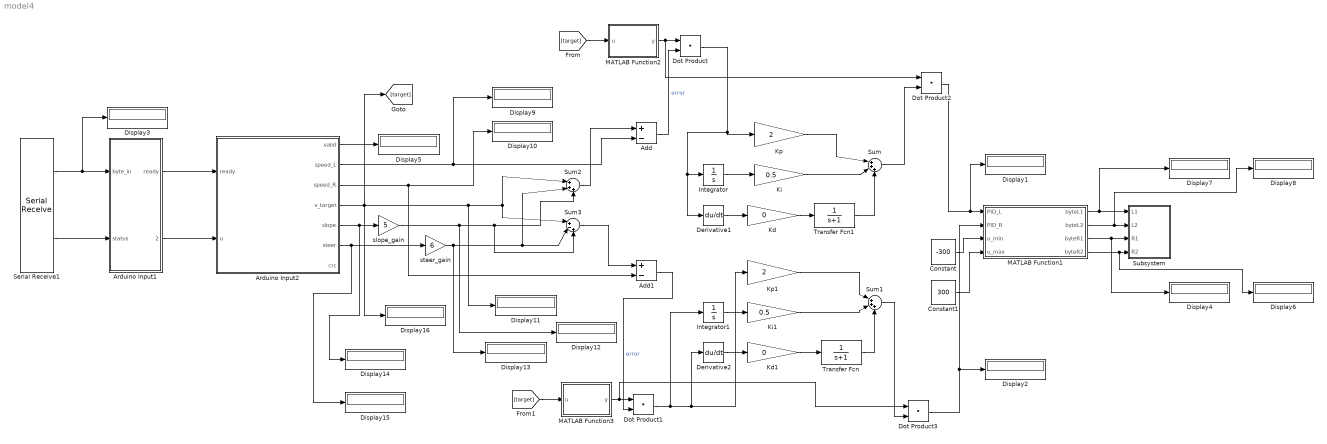
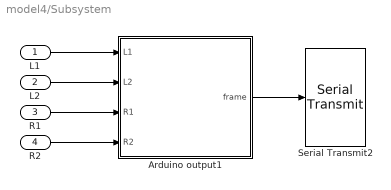
== matlab function model4/MATLAB Function1 ==
function [byteL1, byteL2, byteR1, byteR2] = encode_pwm_duty(PID_L, PID_R, u_min, u_max)
%#codegen

% [-1000, 1000] 범위로 선형 매핑
scale = 1000 / (u_max - u_min);
dutyL = int16(round((PID_L - u_min) * scale - 500));
dutyR = int16(round((PID_R - u_min) * scale - 500));

% uint16로 안전 변환 (비트 연산 위해)
dutyL_u = uint16(typecast(dutyL, 'uint16'));
dutyL_u = dutyL_u(1);
dutyR_u = uint16(typecast(dutyR, 'uint16'));
dutyR_u = dutyR_u(1);
% MSB / LSB 분리
byteL1 = uint8(bitshift(dutyL_u, -8));  % MSB
byteL2 = uint8(bitand(dutyL_u, 255));   % LSB

byteR1 = uint8(bitshift(dutyR_u, -8));
byteR2 = uint8(bitand(dutyR_u, 255));

% function [byteL1, byteL2, byteR1, byteR2] = encode_pwm_duty(PID_L, PID_R, u_min, u_max)
% % PID_L, PID_R : PID 제어기 출력값 (실수형)
% % u_min, u_max : PID 출력 예상 범위 (예: -4050 ~ +4050)
% 
% % 매핑 대상 범위
% min_duty = -1000;
% max_duty = 1000;
% 
% %% 매핑 함수 정의
% map_to_range = @(u) ((u - u_min) / (u_max - u_min)) * (max_duty - min_duty) + min_duty;
% 
% % 매핑 수행
% dutyL = int16(round(map_to_range(PID_L)));  % 정수로 변환
% dutyR = int16(round(map_to_range(PID_R)));
% 
% % MSB/LSB 분리
% byteL2 = bitand(dutyL, 255);         % LSB
% byteL1 = bitshift(dutyL, -8);        % MSB
% 
% byteR2 = bitand(dutyR, 255);
% byteR1 = bitshift(dutyR, -8);

== matlab function model4/MATLAB Function2 ==
function y = fcn(u)

if u<1 && u > -1
    y=0;
else
    y=1;
end

== matlab function model4/Arduino Input2 ==
function [valid, speed_L, speed_R, v_target, slope, steer, crc] =  Arduino_Input2( ready, u)
% UART 패킷 파서 (persistent 방식으로 이전 값 유지)
% u: [10x1] uint8, 패킷 데이터
% ready: 패킷 유효 신호

%#codegen

% 이전 출력값 저장용 persistent 변수
persistent p_valid p_speed_L p_speed_R p_v_target p_slope p_steer p_crc
 
% 초기화 (최초 실행 시)
if isempty(p_valid)
    p_valid = false;
    p_speed_L = 0.0;
    p_speed_R = 0.0;
    p_v_target = uint16(0);
    p_slope = int8(0);
    p_steer = int8(0);
    p_crc = uint8(0);
end

% 새로운 데이터가 들어왔을 경우만 업데이트
if ready == 1
    % data_sum = uint16((2)) + uint16(u(3)) + uint16(u(4)) + uint16(u(5)) + uint16(u(6)) + uint16(u(7)) + uint16(u(8)) + uint16(u(9));
    % if (0xFF & data_sum) == 0
        p_valid = true;
        p_speed_L = (double(u(2)-1) + double(u(3)-1)/100)*10;
        p_speed_R = (double(u(4)-1) + double(u(5)-1)/100)*10;
        if u(7)==1
            u(7)=u(7)-1;
        end
        p_v_target = uint16(u(7)-1)*10;
        tmp = typecast(u(6), 'int8'); tmp = tmp(1);
        if tmp <= int8(30) && tmp >= int8(-30)
            p_slope = tmp;
        end
        tmp = typecast(u(8), 'int8'); tmp = tmp(1);
        if  tmp <= int8(30) && tmp >= int8(-30)
            p_steer = tmp;
        end
        p_crc = u(9);
    % end
end

% 항상 마지막 유효 출력 반환
valid     = p_valid;
speed_L   = p_speed_L;
speed_R   = p_speed_R;
v_target  = p_v_target;
slope     = p_slope;
steer     = p_steer;
crc       = p_crc;

== matlab function model4/Arduino Input1 ==
function [ready, data_out] = uart_parser(byte_in, status)
% UART 프레임 수신기 (Start Byte = 0xAA, Total = 10 bytes)
% 입력: byte_in - 1바이트씩 들어오는 uint8
% 입력: status - Serial Receive의 상태 (1이면 수신 성공)
% 출력: ready - 1이면 패킷 파싱 완료
% 출력: data_out - [1x10] uint8, 패킷 데이터

persistent buffer count collecting

if isempty(buffer)
    buffer = zeros(1, 10, 'uint8');
    count = 0;
    collecting = false;
end

ready = false;
data_out = zeros(1,10,'uint8');

if status == 1
    if ~collecting
        % 아직 수집 시작 전 → start byte 찾기
        if byte_in == hex2dec('AA')
            buffer(1) = byte_in;
            count = 1;
            collecting = true;
        end
    else
        if byte_in == hex2dec('AA')
            count = 1;
        end
        % 수집 중
        count = count + 1;
        buffer(count) = byte_in;

        if count == 10
            data_out = buffer;
            ready = true;
            count = 0;
            collecting = false;
        end
    end
else
    % if count~=0
    %     count = count + 1;
    %     buffer(count) = uint8(0);
    %     if count == 10
    %         data_out = buffer;
    %         ready = true;
    %         count = 0;
    %         collecting = false;
    %     end
    % else
        buffer = zeros(1, 10, 'uint8');
        count = 0;
        collecting = false;
    % end
end

== matlab function model4/MATLAB Function3 ==
function y = fcn(u)

if u<1 && u > -1
    y=0;
else
    y=1;
end

== matlab function model4/Subsystem/Arduino output1 ==
function frame = makeFrame(L1,L2,R1,R2)
% 입력:
%   vL, vR : 좌/우 목표 속도 (실수, cm/s 단위)
% 출력:
%   frame : 7-byte UART 전송 프레임 (uint8 벡터)
    frame = zeros(5,1,'uint8');  % 7바이트 프레임

    % 2-3. 목표속도_L (정수 + 소수)
    frame(1) = uint8(L1);                       % 정수부
    frame(2) = uint8(L2);       % 소수부 (소수점 둘째 자리까지)

    % 4-5. 목표속도_R (정수 + 소수)
    frame(3) = uint8(R1);                       % 정수부
    frame(4) = uint8(R2);       % 소수부

    % 6. CRC: 256 - (sum of byte 1~5) % 256
    crc = mod(sum(double(frame(1:5))), 256);
    frame(5) = uint8(mod(256 - crc, 256));
    
end

/*
 * Academic License - for use in teaching, academic research, and meeting
 * course requirements at degree granting institutions only.  Not for
 * government, commercial, or other organizational use.
 *
 * File: model4.c
 *
 * Code generated for Simulink model 'model4'.
 *
 * Model version                  : 1.173
 * Simulink Coder version         : 24.2 (R2024b) 21-Jun-2024
 * C/C++ source code generated on : Mon May 26 21:13:55 2025
 *
 * Target selection: ert.tlc
 * Embedded hardware selection: Atmel->AVR
 * Code generation objectives: Unspecified
 * Validation result: Not run
 */

#include "model4.h"
#include "rtwtypes.h"
#include "model4_private.h"
#include <math.h>
#include "rt_nonfinite.h"
#include <string.h>
#include <stddef.h>

/* Block signals (default storage) */
B_model4_T model4_B;

/* Continuous states */
X_model4_T model4_X;

/* Disabled State Vector */
XDis_model4_T model4_XDis;

/* Block states (default storage) */
DW_model4_T model4_DW;

/* Real-time model */
static RT_MODEL_model4_T model4_M_;
RT_MODEL_model4_T *const model4_M = &model4_M_;

/* Forward declaration for local functions */
static real_T model4_mod(real_T x);
static void rate_monotonic_scheduler(void);

/*
 * Set which subrates need to run this base step (base rate always runs).
 * This function must be called prior to calling the model step function
 * in order to remember which rates need to run this base step.  The
 * buffering of events allows for overlapping preemption.
 */
void model4_SetEventsForThisBaseStep(boolean_T *eventFlags)
{
  /* Task runs when its counter is zero, computed via rtmStepTask macro */
  eventFlags[2] = ((boolean_T)rtmStepTask(model4_M, 2));
}

/*
 *         This function updates active task flag for each subrate
 *         and rate transition flags for tasks that exchange data.
 *         The function assumes rate-monotonic multitasking scheduler.
 *         The function must be called at model base rate so that
 *         the generated code self-manages all its subrates and rate
 *         transition flags.
 */
static void rate_monotonic_scheduler(void)
{
  /* To ensure a deterministic data transfer between two rates,
   * data is transferred at the priority of a fast task and the frequency
   * of the slow task.  The following flags indicate when the data transfer
   * happens.  That is, a rate interaction flag is set true when both rates
   * will run, and false otherwise.
   */

  /* tid 1 shares data with slower tid rate: 2 */
  if (model4_M->Timing.TaskCounters.TID[1] == 0) {
    model4_M->Timing.RateInteraction.TID1_2 = (model4_M->
      Timing.TaskCounters.TID[2] == 0);
  }

  /* Compute which subrates run during the next base time step.  Subrates
   * are an integer multiple of the base rate counter.  Therefore, the subtask
   * counter is reset when it reaches its limit (zero means run).
   */
  (model4_M->Timing.TaskCounters.TID[2])++;
  if ((model4_M->Timing.TaskCounters.TID[2]) > 99) {/* Sample time: [0.1s, 0.0s] */
    model4_M->Timing.TaskCounters.TID[2] = 0;
  }
}

/*
 * This function updates continuous states using the ODE3 fixed-step
 * solver algorithm
 */
static void rt_ertODEUpdateContinuousStates(RTWSolverInfo *si )
{
  /* Solver Matrices */
  static const real_T rt_ODE3_A[3] = {
    1.0/2.0, 3.0/4.0, 1.0
  };

  static const real_T rt_ODE3_B[3][3] = {
    { 1.0/2.0, 0.0, 0.0 },

    { 0.0, 3.0/4.0, 0.0 },

    { 2.0/9.0, 1.0/3.0, 4.0/9.0 }
  };

  time_T t = rtsiGetT(si);
  time_T tnew = rtsiGetSolverStopTime(si);
  time_T h = rtsiGetStepSize(si);
  real_T *x = rtsiGetContStates(si);
  ODE3_IntgData *id = (ODE3_IntgData *)rtsiGetSolverData(si);
  real_T *y = id->y;
  real_T *f0 = id->f[0];
  real_T *f1 = id->f[1];
  real_T *f2 = id->f[2];
  real_T hB[3];
  int_T i;
  int_T nXc = 4;
  rtsiSetSimTimeStep(si,MINOR_TIME_STEP);

  /* Save the state values at time t in y, we'll use x as ynew. */
  (void) memcpy(y, x,
                (uint_T)nXc*sizeof(real_T));

  /* Assumes that rtsiSetT and ModelOutputs are up-to-date */
  /* f0 = f(t,y) */
  rtsiSetdX(si, f0);
  model4_derivatives();

  /* f(:,2) = feval(odefile, t + hA(1), y + f*hB(:,1), args(:)(*)); */
  hB[0] = h * rt_ODE3_B[0][0];
  for (i = 0; i < nXc; i++) {
    x[i] = y[i] + (f0[i]*hB[0]);
  }

  rtsiSetT(si, t + h*rt_ODE3_A[0]);
  rtsiSetdX(si, f1);
  model4_step0();
  model4_derivatives();

  /* f(:,3) = feval(odefile, t + hA(2), y + f*hB(:,2), args(:)(*)); */
  for (i = 0; i <= 1; i++) {
    hB[i] = h * rt_ODE3_B[1][i];
  }

  for (i = 0; i < nXc; i++) {
    x[i] = y[i] + (f0[i]*hB[0] + f1[i]*hB[1]);
  }

  rtsiSetT(si, t + h*rt_ODE3_A[1]);
  rtsiSetdX(si, f2);
  model4_step0();
  model4_derivatives();

  /* tnew = t + hA(3);
     ynew = y + f*hB(:,3); */
  for (i = 0; i <= 2; i++) {
    hB[i] = h * rt_ODE3_B[2][i];
  }

  for (i = 0; i < nXc; i++) {
    x[i] = y[i] + (f0[i]*hB[0] + f1[i]*hB[1] + f2[i]*hB[2]);
  }

  rtsiSetT(si, tnew);
  rtsiSetSimTimeStep(si,MAJOR_TIME_STEP);
}

/*
 * Output and update for atomic system:
 *    '<Root>/MATLAB Function2'
 *    '<Root>/MATLAB Function3'
 */
void model4_MATLABFunction2(uint16_T rtu_u, real_T *rty_y)
{
  *rty_y = (rtu_u >= 1U);
}

real_T rt_roundd_snf(real_T u)
{
  real_T y;
  if (fabs(u) < 4.503599627370496E+15) {
    if (u >= 0.5) {
      y = floor(u + 0.5);
    } else if (u > -0.5) {
      y = u * 0.0;
    } else {
      y = ceil(u - 0.5);
    }
  } else {
    y = u;
  }

  return y;
}

/* Function for MATLAB Function: '<S6>/Arduino output1' */
static real_T model4_mod(real_T x)
{
  real_T r;
  if (rtIsNaN(x)) {
    r = (rtNaN);
  } else if (rtIsInf(x)) {
    r = (rtNaN);
  } else if (x == 0.0) {
    r = 0.0;
  } else {
    r = fmod(x, 256.0);
    if (r == 0.0) {
      r = 0.0;
    } else if (r < 0.0) {
      r += 256.0;
    }
  }

  return r;
}

/* Model step function for TID0 */
void model4_step0(void)                /* Sample time: [0.0s, 0.0s] */
{
  /* local block i/o variables */
  uint16_T rtb_v_target;
  if (rtmIsMajorTimeStep(model4_M)) {
    /* set solver stop time */
    rtsiSetSolverStopTime(&model4_M->solverInfo,((model4_M->Timing.clockTick0+1)*
      model4_M->Timing.stepSize0));

    {                                  /* Sample time: [0.0s, 0.0s] */
      rate_monotonic_scheduler();
    }
  }                                    /* end MajorTimeStep */

  /* Update absolute time of base rate at minor time step */
  if (rtmIsMinorTimeStep(model4_M)) {
    model4_M->Timing.t[0] = rtsiGetT(&model4_M->solverInfo);
  }

  {
    real_T rtb_Derivative2;
    real_T rtb_steer_gain;
    real_T tmp_0;
    real_T *lastU;
    int16_T i;
    int16_T qY;
    uint16_T dutyL_u;
    uint16_T dutyR_u;
    int8_T tmp;
    uint8_T rtb_data_out[10];
    uint8_T b_dataOut;
    uint8_T b_status;
    boolean_T rtb_ready;
    boolean_T tmp_1;

    /* RateTransition generated from: '<Root>/Subsystem' */
    tmp_1 = rtmIsMajorTimeStep(model4_M);
    if (tmp_1) {
      /* MATLABSystem: '<Root>/Serial Receive1' */
      MW_Serial_read(1, 1U, &b_dataOut, &b_status, NULL, 0.0, NULL, 0.0);

      /* MATLAB Function: '<Root>/Arduino Input1' incorporates:
       *  MATLABSystem: '<Root>/Serial Receive1'
       * */
      rtb_ready = false;
      for (i = 0; i < 10; i++) {
        rtb_data_out[i] = 0U;
      }

      if (b_status == 1) {
        if (!model4_DW.collecting) {
          if (b_dataOut == 170) {
            model4_DW.buffer[0] = 170U;
            model4_DW.count = 1.0;
            model4_DW.collecting = true;
          }
        } else {
          if (b_dataOut == 170) {
            model4_DW.count = 1.0;
          }

          model4_DW.count++;
          model4_DW.buffer[(int16_T)model4_DW.count - 1] = b_dataOut;
          if (model4_DW.count == 10.0) {
            for (i = 0; i < 10; i++) {
              rtb_data_out[i] = model4_DW.buffer[i];
            }

            rtb_ready = true;
            model4_DW.count = 0.0;
            model4_DW.collecting = false;
          }
        }
      } else {
        for (i = 0; i < 10; i++) {
          model4_DW.buffer[i] = 0U;
        }

        model4_DW.count = 0.0;
        model4_DW.collecting = false;
      }

      /* End of MATLAB Function: '<Root>/Arduino Input1' */

      /* MATLAB Function: '<Root>/Arduino Input2' */
      for (i = 0; i < 10; i++) {
        model4_B.u[i] = rtb_data_out[i];
      }

      if (rtb_ready) {
        dutyL_u = rtb_data_out[1] - 1U;
        if (rtb_data_out[1] - 1U > rtb_data_out[1]) {
          dutyL_u = 0U;
        }

        dutyR_u = rtb_data_out[2] - 1U;
        if (rtb_data_out[2] - 1U > rtb_data_out[2]) {
          dutyR_u = 0U;
        }

        model4_DW.p_speed_L = ((real_T)(int16_T)dutyR_u / 100.0 + (real_T)
          (int16_T)dutyL_u) * 10.0;
        dutyL_u = rtb_data_out[3] - 1U;
        if (rtb_data_out[3] - 1U > rtb_data_out[3]) {
          dutyL_u = 0U;
        }

        dutyR_u = rtb_data_out[4] - 1U;
        if (rtb_data_out[4] - 1U > rtb_data_out[4]) {
          dutyR_u = 0U;
        }

        model4_DW.p_speed_R = ((real_T)(int16_T)dutyR_u / 100.0 + (real_T)
          (int16_T)dutyL_u) * 10.0;
        if (rtb_data_out[6] == 1) {
          model4_B.u[6] = 0U;
        }

        dutyL_u = model4_B.u[6] - 1U;
        if (model4_B.u[6] - 1U > model4_B.u[6]) {
          dutyL_u = 0U;
        }

        model4_DW.p_v_target = dutyL_u * 10U;
        memcpy((void *)&tmp, (void *)&rtb_data_out[5], (size_t)1 * sizeof(int8_T));
        if ((tmp <= 30) && (tmp >= -30)) {
          model4_DW.p_slope = tmp;
        }

        memcpy((void *)&tmp, (void *)&rtb_data_out[7], (size_t)1 * sizeof(int8_T));
        if ((tmp <= 30) && (tmp >= -30)) {
          model4_DW.p_steer = tmp;
        }
      }

      rtb_v_target = model4_DW.p_v_target;

      /* Gain: '<Root>/steer_gain' incorporates:
       *  MATLAB Function: '<Root>/Arduino Input2'
       */
      rtb_steer_gain = model4_P.steer_gain_Gain * (real_T)model4_DW.p_steer;

      /* Gain: '<Root>/slope_gain' incorporates:
       *  MATLAB Function: '<Root>/Arduino Input2'
       */
      i = model4_P.slope_gain_Gain * model4_DW.p_slope;

      /* MATLAB Function: '<Root>/MATLAB Function2' */
      model4_MATLABFunction2(rtb_v_target, &model4_B.y_j);

      /* DotProduct: '<Root>/Dot Product' incorporates:
       *  Gain: '<Root>/slope_gain'
       *  MATLAB Function: '<Root>/Arduino Input2'
       *  Sum: '<Root>/Add'
       *  Sum: '<Root>/Sum2'
       */
      model4_B.DotProduct = ((((real_T)rtb_v_target + rtb_steer_gain) + (real_T)
        i * 0.0625) - model4_DW.p_speed_L) * model4_B.y_j;
    }

    /* Derivative: '<Root>/Derivative1' incorporates:
     *  Derivative: '<Root>/Derivative2'
     */
    tmp_0 = model4_M->Timing.t[0];
    if ((model4_DW.TimeStampA >= tmp_0) && (model4_DW.TimeStampB >= tmp_0)) {
      rtb_Derivative2 = 0.0;
    } else {
      rtb_Derivative2 = model4_DW.TimeStampA;
      lastU = &model4_DW.LastUAtTimeA;
      if (model4_DW.TimeStampA < model4_DW.TimeStampB) {
        if (model4_DW.TimeStampB < tmp_0) {
          rtb_Derivative2 = model4_DW.TimeStampB;
          lastU = &model4_DW.LastUAtTimeB;
        }
      } else if (model4_DW.TimeStampA >= tmp_0) {
        rtb_Derivative2 = model4_DW.TimeStampB;
        lastU = &model4_DW.LastUAtTimeB;
      }

      rtb_Derivative2 = (model4_B.DotProduct - *lastU) / (tmp_0 -
        rtb_Derivative2);
    }

    /* End of Derivative: '<Root>/Derivative1' */

    /* Gain: '<Root>/Kd' */
    model4_B.Kd = model4_P.Kd_Gain * rtb_Derivative2;
    if (tmp_1) {
      /* Gain: '<Root>/Kp' */
      model4_B.Kp = model4_P.Kp_Gain * model4_B.DotProduct;

      /* MATLAB Function: '<Root>/MATLAB Function3' */
      model4_MATLABFunction2(rtb_v_target, &model4_B.y);

      /* DotProduct: '<Root>/Dot Product1' incorporates:
       *  Gain: '<Root>/slope_gain'
       *  Sum: '<Root>/Add1'
       *  Sum: '<Root>/Sum3'
       */
      model4_B.DotProduct1 = ((((real_T)rtb_v_target - rtb_steer_gain) + (real_T)
        i * 0.0625) - model4_DW.p_speed_R) * model4_B.y;

      /* Gain: '<Root>/Kp1' */
      model4_B.Kp1 = model4_P.Kp1_Gain * model4_B.DotProduct1;
    }

    /* MATLAB Function: '<Root>/MATLAB Function1' incorporates:
     *  Constant: '<Root>/Constant'
     *  Constant: '<Root>/Constant1'
     */
    rtb_steer_gain = 1000.0 / (model4_P.Constant1_Value -
      model4_P.Constant_Value);

    /* DotProduct: '<Root>/Dot Product2' incorporates:
     *  Gain: '<Root>/Ki'
     *  Integrator: '<Root>/Integrator'
     *  Sum: '<Root>/Sum'
     *  TransferFcn: '<Root>/Transfer Fcn1'
     */
    rtb_Derivative2 = floor(((model4_P.Ki_Gain * model4_X.Integrator_CSTATE +
      model4_B.Kp) + model4_P.TransferFcn1_C * model4_X.TransferFcn1_CSTATE) *
      model4_B.y_j);
    if (rtIsNaN(rtb_Derivative2) || rtIsInf(rtb_Derivative2)) {
      rtb_Derivative2 = 0.0;
    } else {
      rtb_Derivative2 = fmod(rtb_Derivative2, 65536.0);
    }

    /* MATLAB Function: '<Root>/MATLAB Function1' incorporates:
     *  Constant: '<Root>/Constant'
     *  DotProduct: '<Root>/Dot Product2'
     */
    rtb_Derivative2 = rt_roundd_snf((real_T)(rtb_Derivative2 < 0.0 ? -(int16_T)
      (uint16_T)-rtb_Derivative2 : (int16_T)(uint16_T)rtb_Derivative2) -
      model4_P.Constant_Value);
    if (rtb_Derivative2 < 32768.0) {
      if (rtb_Derivative2 >= -32768.0) {
        i = (int16_T)rtb_Derivative2;
      } else {
        i = MIN_int16_T;
      }
    } else {
      i = MAX_int16_T;
    }

    rtb_Derivative2 = rt_roundd_snf((real_T)i * rtb_steer_gain);
    if (rtb_Derivative2 < 32768.0) {
      if (rtb_Derivative2 >= -32768.0) {
        i = (int16_T)rtb_Derivative2;
      } else {
        i = MIN_int16_T;
      }
    } else {
      i = MAX_int16_T;
    }

    if (i < -32268) {
      qY = MIN_int16_T;
    } else {
      qY = i - 500;
    }

    /* DotProduct: '<Root>/Dot Product3' incorporates:
     *  Gain: '<Root>/Ki1'
     *  Integrator: '<Root>/Integrator1'
     *  Sum: '<Root>/Sum1'
     *  TransferFcn: '<Root>/Transfer Fcn'
     */
    rtb_Derivative2 = floor(((model4_P.Ki1_Gain * model4_X.Integrator1_CSTATE +
      model4_B.Kp1) + model4_P.TransferFcn_C * model4_X.TransferFcn_CSTATE) *
      model4_B.y);
    if (rtIsNaN(rtb_Derivative2) || rtIsInf(rtb_Derivative2)) {
      rtb_Derivative2 = 0.0;
    } else {
      rtb_Derivative2 = fmod(rtb_Derivative2, 65536.0);
    }

    /* MATLAB Function: '<Root>/MATLAB Function1' incorporates:
     *  Constant: '<Root>/Constant'
     *  DotProduct: '<Root>/Dot Product3'
     */
    rtb_Derivative2 = rt_roundd_snf((real_T)(rtb_Derivative2 < 0.0 ? -(int16_T)
      (uint16_T)-rtb_Derivative2 : (int16_T)(uint16_T)rtb_Derivative2) -
      model4_P.Constant_Value);
    if (rtb_Derivative2 < 32768.0) {
      if (rtb_Derivative2 >= -32768.0) {
        i = (int16_T)rtb_Derivative2;
      } else {
        i = MIN_int16_T;
      }
    } else {
      i = MAX_int16_T;
    }

    rtb_Derivative2 = rt_roundd_snf((real_T)i * rtb_steer_gain);
    if (rtb_Derivative2 < 32768.0) {
      if (rtb_Derivative2 >= -32768.0) {
        i = (int16_T)rtb_Derivative2;
      } else {
        i = MIN_int16_T;
      }
    } else {
      i = MAX_int16_T;
    }

    if (i < -32268) {
      i = MIN_int16_T;
    } else {
      i -= 500;
    }

    memcpy((void *)&dutyL_u, (void *)&qY, (size_t)1 * sizeof(uint16_T));
    memcpy((void *)&dutyR_u, (void *)&i, (size_t)1 * sizeof(uint16_T));

    /* RateTransition generated from: '<Root>/Subsystem' incorporates:
     *  MATLAB Function: '<Root>/MATLAB Function1'
     */
    if (tmp_1 && model4_M->Timing.RateInteraction.TID1_2) {
      model4_DW.byteL1_Buffer = (uint8_T)(dutyL_u >> 8);

      /* RateTransition generated from: '<Root>/Subsystem' incorporates:
       *  MATLAB Function: '<Root>/MATLAB Function1'
       */
      model4_DW.byteL2_Buffer = (uint8_T)(dutyL_u & 255U);

      /* RateTransition generated from: '<Root>/Subsystem' incorporates:
       *  MATLAB Function: '<Root>/MATLAB Function1'
       */
      model4_DW.byteR1_Buffer = (uint8_T)(dutyR_u >> 8);

      /* RateTransition generated from: '<Root>/Subsystem' incorporates:
       *  MATLAB Function: '<Root>/MATLAB Function1'
       */
      model4_DW.byteR2_Buffer = (uint8_T)(dutyR_u & 255U);
    }

    /* Derivative: '<Root>/Derivative2' */
    if ((model4_DW.TimeStampA_l >= tmp_0) && (model4_DW.TimeStampB_i >= tmp_0))
    {
      rtb_Derivative2 = 0.0;
    } else {
      rtb_Derivative2 = model4_DW.TimeStampA_l;
      lastU = &model4_DW.LastUAtTimeA_k;
      if (model4_DW.TimeStampA_l < model4_DW.TimeStampB_i) {
        if (model4_DW.TimeStampB_i < tmp_0) {
          rtb_Derivative2 = model4_DW.TimeStampB_i;
          lastU = &model4_DW.LastUAtTimeB_o;
        }
      } else if (model4_DW.TimeStampA_l >= tmp_0) {
        rtb_Derivative2 = model4_DW.TimeStampB_i;
        lastU = &model4_DW.LastUAtTimeB_o;
      }

      rtb_Derivative2 = (model4_B.DotProduct1 - *lastU) / (tmp_0 -
        rtb_Derivative2);
    }

    /* Gain: '<Root>/Kd1' */
    model4_B.Kd1 = model4_P.Kd1_Gain * rtb_Derivative2;
  }

  if (rtmIsMajorTimeStep(model4_M)) {
    real_T *lastU;

    /* Update for Derivative: '<Root>/Derivative1' */
    if (model4_DW.TimeStampA == (rtInf)) {
      model4_DW.TimeStampA = model4_M->Timing.t[0];
      lastU = &model4_DW.LastUAtTimeA;
    } else if (model4_DW.TimeStampB == (rtInf)) {
      model4_DW.TimeStampB = model4_M->Timing.t[0];
      lastU = &model4_DW.LastUAtTimeB;
    } else if (model4_DW.TimeStampA < model4_DW.TimeStampB) {
      model4_DW.TimeStampA = model4_M->Timing.t[0];
      lastU = &model4_DW.LastUAtTimeA;
    } else {
      model4_DW.TimeStampB = model4_M->Timing.t[0];
      lastU = &model4_DW.LastUAtTimeB;
    }

    *lastU = model4_B.DotProduct;

    /* End of Update for Derivative: '<Root>/Derivative1' */

    /* Update for Derivative: '<Root>/Derivative2' */
    if (model4_DW.TimeStampA_l == (rtInf)) {
      model4_DW.TimeStampA_l = model4_M->Timing.t[0];
      lastU = &model4_DW.LastUAtTimeA_k;
    } else if (model4_DW.TimeStampB_i == (rtInf)) {
      model4_DW.TimeStampB_i = model4_M->Timing.t[0];
      lastU = &model4_DW.LastUAtTimeB_o;
    } else if (model4_DW.TimeStampA_l < model4_DW.TimeStampB_i) {
      model4_DW.TimeStampA_l = model4_M->Timing.t[0];
      lastU = &model4_DW.LastUAtTimeA_k;
    } else {
      model4_DW.TimeStampB_i = model4_M->Timing.t[0];
      lastU = &model4_DW.LastUAtTimeB_o;
    }

    *lastU = model4_B.DotProduct1;

    /* End of Update for Derivative: '<Root>/Derivative2' */
  }                                    /* end MajorTimeStep */

  if (rtmIsMajorTimeStep(model4_M)) {
    rt_ertODEUpdateContinuousStates(&model4_M->solverInfo);

    /* Update absolute time */
    /* The "clockTick0" counts the number of times the code of this task has
     * been executed. The absolute time is the multiplication of "clockTick0"
     * and "Timing.stepSize0". Size of "clockTick0" ensures timer will not
     * overflow during the application lifespan selected.
     */
    ++model4_M->Timing.clockTick0;
    model4_M->Timing.t[0] = rtsiGetSolverStopTime(&model4_M->solverInfo);

    /* Update absolute time */
    /* The "clockTick1" counts the number of times the code of this task has
     * been executed. The resolution of this integer timer is 0.001, which is the step size
     * of the task. Size of "clockTick1" ensures timer will not overflow during the
     * application lifespan selected.
     */
    model4_M->Timing.clockTick1++;
  }                                    /* end MajorTimeStep */
}

/* Derivatives for root system: '<Root>' */
void model4_derivatives(void)
{
  XDot_model4_T *_rtXdot;
  _rtXdot = ((XDot_model4_T *) model4_M->derivs);

  /* Derivatives for Integrator: '<Root>/Integrator' */
  _rtXdot->Integrator_CSTATE = model4_B.DotProduct;

  /* Derivatives for TransferFcn: '<Root>/Transfer Fcn1' */
  _rtXdot->TransferFcn1_CSTATE = model4_P.TransferFcn1_A *
    model4_X.TransferFcn1_CSTATE;
  _rtXdot->TransferFcn1_CSTATE += model4_B.Kd;

  /* Derivatives for Integrator: '<Root>/Integrator1' */
  _rtXdot->Integrator1_CSTATE = model4_B.DotProduct1;

  /* Derivatives for TransferFcn: '<Root>/Transfer Fcn' */
  _rtXdot->TransferFcn_CSTATE = model4_P.TransferFcn_A *
    model4_X.TransferFcn_CSTATE;
  _rtXdot->TransferFcn_CSTATE += model4_B.Kd1;
}

/* Model step function for TID2 */
void model4_step2(void)                /* Sample time: [0.1s, 0.0s] */
{
  real_T tmp;
  uint8_T rtb_frame[5];
  uint8_T varargin_10;
  uint8_T varargin_9;

  /* Outputs for Atomic SubSystem: '<Root>/Subsystem' */
  /* MATLAB Function: '<S6>/Arduino output1' incorporates:
   *  RateTransition generated from: '<Root>/Subsystem'
   * */
  rtb_frame[0] = model4_DW.byteL1_Buffer;
  rtb_frame[1] = model4_DW.byteL2_Buffer;
  rtb_frame[2] = model4_DW.byteR1_Buffer;
  rtb_frame[3] = model4_DW.byteR2_Buffer;
  tmp = rt_roundd_snf(model4_mod(256.0 - model4_mod((real_T)
    (((model4_DW.byteL1_Buffer + model4_DW.byteL2_Buffer) +
      model4_DW.byteR1_Buffer) + model4_DW.byteR2_Buffer))));
  if (tmp < 256.0) {
    if (tmp >= 0.0) {
      rtb_frame[4] = (uint8_T)tmp;
    } else {
      rtb_frame[4] = 0U;
    }
  } else {
    rtb_frame[4] = MAX_uint8_T;
  }

  /* End of MATLAB Function: '<S6>/Arduino output1' */

  /* MATLABSystem: '<S6>/Serial Transmit2' */
  varargin_9 = 85U;
  varargin_10 = 170U;
  MW_Serial_write(model4_DW.obj.port, &rtb_frame[0], 5.0,
                  model4_DW.obj.dataSizeInBytes, model4_DW.obj.sendModeEnum,
                  model4_DW.obj.dataType, model4_DW.obj.sendFormatEnum, 2.0,
                  '\x00', &varargin_9, 1.0, &varargin_10, 1.0);

  /* End of Outputs for SubSystem: '<Root>/Subsystem' */
}
